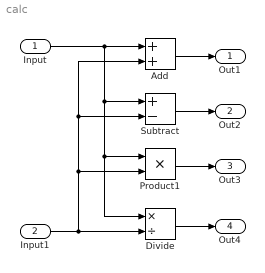
/*
 * File: calc.c
 *
 * Code generated for Simulink model 'calc'.
 *
 * Model version                  : 1.2
 * Simulink Coder version         : 9.3 (R2020a) 18-Nov-2019
 * C/C++ source code generated on : Thu Mar 24 11:51:06 2022
 *
 * Target selection: ert.tlc
 * Embedded hardware selection: Intel->x86-64 (Windows64)
 * Code generation objectives: Unspecified
 * Validation result: Not run
 */

#include "calc.h"
#include "calc_private.h"

/* External inputs (root inport signals with default storage) */
ExtU_calc_T calc_U;

/* External outputs (root outports fed by signals with default storage) */
ExtY_calc_T calc_Y;

/* Real-time model */
RT_MODEL_calc_T calc_M_;
RT_MODEL_calc_T *const calc_M = &calc_M_;
void sMultiWordMul(const uint32_T u1[], int32_T n1, const uint32_T u2[], int32_T
                   n2, uint32_T y[], int32_T n)
{
  int32_T i;
  int32_T j;
  int32_T k;
  int32_T ni;
  uint32_T u1i;
  uint32_T yk;
  uint32_T a1;
  uint32_T a0;
  uint32_T b1;
  uint32_T w10;
  uint32_T w01;
  uint32_T cb;
  boolean_T isNegative1;
  boolean_T isNegative2;
  uint32_T cb1;
  uint32_T cb2;
  isNegative1 = ((u1[n1 - 1] & 2147483648U) != 0U);
  isNegative2 = ((u2[n2 - 1] & 2147483648U) != 0U);
  cb1 = 1U;

  /* Initialize output to zero */
  for (k = 0; k < n; k++) {
    y[k] = 0U;
  }

  for (i = 0; i < n1; i++) {
    cb = 0U;
    u1i = u1[i];
    if (isNegative1) {
      u1i = ~u1i + cb1;
      cb1 = (uint32_T)(u1i < cb1);
    }

    a1 = u1i >> 16U;
    a0 = u1i & 65535U;
    cb2 = 1U;
    ni = n - i;
    ni = n2 <= ni ? n2 : ni;
    k = i;
    for (j = 0; j < ni; j++) {
      u1i = u2[j];
      if (isNegative2) {
        u1i = ~u1i + cb2;
        cb2 = (uint32_T)(u1i < cb2);
      }

      b1 = u1i >> 16U;
      u1i &= 65535U;
      w10 = a1 * u1i;
      w01 = a0 * b1;
      yk = y[k] + cb;
      cb = (uint32_T)(yk < cb);
      u1i *= a0;
      yk += u1i;
      cb += (yk < u1i);
      u1i = w10 << 16U;
      yk += u1i;
      cb += (yk < u1i);
      u1i = w01 << 16U;
      yk += u1i;
      cb += (yk < u1i);
      y[k] = yk;
      cb += w10 >> 16U;
      cb += w01 >> 16U;
      cb += a1 * b1;
      k++;
    }

    if (k < n) {
      y[k] = cb;
    }
  }

  /* Apply sign */
  if (isNegative1 != isNegative2) {
    cb = 1U;
    for (k = 0; k < n; k++) {
      yk = ~y[k] + cb;
      y[k] = yk;
      cb = (uint32_T)(yk < cb);
    }
  }
}

int32_T div_s32_floor(int32_T numerator, int32_T denominator)
{
  int32_T quotient;
  uint32_T absNumerator;
  uint32_T absDenominator;
  uint32_T tempAbsQuotient;
  boolean_T quotientNeedsNegation;
  if (denominator == 0) {
    quotient = numerator >= 0 ? MAX_int32_T : MIN_int32_T;

    /* Divide by zero handler */
  } else {
    absNumerator = numerator < 0 ? ~(uint32_T)numerator + 1U : (uint32_T)
      numerator;
    absDenominator = denominator < 0 ? ~(uint32_T)denominator + 1U : (uint32_T)
      denominator;
    quotientNeedsNegation = ((numerator < 0) != (denominator < 0));
    tempAbsQuotient = absNumerator / absDenominator;
    if (quotientNeedsNegation) {
      absNumerator %= absDenominator;
      if (absNumerator > 0U) {
        tempAbsQuotient++;
      }
    }

    quotient = quotientNeedsNegation ? -(int32_T)tempAbsQuotient : (int32_T)
      tempAbsQuotient;
  }

  return quotient;
}

/* Model step function */
void calc_step(void)
{
  uint32_T tmp;
  uint32_T tmp_0;

  /* Outport: '<Root>/Out1' incorporates:
   *  Inport: '<Root>/Input'
   *  Inport: '<Root>/Input1'
   *  Sum: '<Root>/Add'
   */
  calc_Y.Out1 = calc_U.Input + calc_U.Input1;

  /* Outport: '<Root>/Out2' incorporates:
   *  Inport: '<Root>/Input'
   *  Inport: '<Root>/Input1'
   *  Sum: '<Root>/Subtract'
   */
  calc_Y.Out2 = calc_U.Input - calc_U.Input1;

  /* Product: '<Root>/Product1' incorporates:
   *  Inport: '<Root>/Input'
   *  Inport: '<Root>/Input1'
   *  Outport: '<Root>/Out3'
   */
  tmp = (uint32_T)calc_U.Input;
  tmp_0 = (uint32_T)calc_U.Input1;
  sMultiWordMul(&tmp, 1, &tmp_0, 1, &calc_Y.Out3.chunks[0U], 2);

  /* Outport: '<Root>/Out4' incorporates:
   *  Inport: '<Root>/Input'
   *  Inport: '<Root>/Input1'
   *  Product: '<Root>/Divide'
   */
  calc_Y.Out4 = div_s32_floor(calc_U.Input, calc_U.Input1);
}
